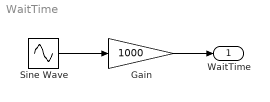
/*
 * File: WaitTime.c
 *
 * Code generated for Simulink model 'WaitTime'.
 *
 * Model version                  : 1.1
 * Simulink Coder version         : 9.3 (R2020a) 18-Nov-2019
 * C/C++ source code generated on : Tue Feb 15 23:33:07 2022
 *
 * Target selection: ert.tlc
 * Embedded hardware selection: ARM Compatible->ARM Cortex
 * Code generation objectives:
 *    1. Execution efficiency
 *    2. RAM efficiency
 * Validation result: Not run
 */

#include "WaitTime.h"

/* Block signals and states (default storage) */
DW rtDW;

/* External outputs (root outports fed by signals with default storage) */
ExtY rtY;

/* Real-time model */
RT_MODEL rtM_;
RT_MODEL *const rtM = &rtM_;

/* Model step function */
void WaitTime_step(void)
{
  real_T lastSin_tmp;

  /* Sin: '<Root>/Sine Wave' */
  if (rtDW.systemEnable != 0) {
    lastSin_tmp = 0.1 * ((rtM->Timing.clockTick0) * 1.0);
    rtDW.lastSin = sin(lastSin_tmp);
    rtDW.lastCos = cos(lastSin_tmp);
    rtDW.systemEnable = 0;
  }

  /* Outport: '<Root>/WaitTime' incorporates:
   *  Gain: '<Root>/Gain'
   *  Sin: '<Root>/Sine Wave'
   */
  rtY.WaitTime_g = (((rtDW.lastSin * 0.99500416527802571 + rtDW.lastCos *
                      -0.099833416646828155) * 0.99500416527802571 +
                     (rtDW.lastCos * 0.99500416527802571 - rtDW.lastSin *
                      -0.099833416646828155) * 0.099833416646828155) * 0.2 +
                    0.25) * 1000.0;

  /* Update for Sin: '<Root>/Sine Wave' */
  lastSin_tmp = rtDW.lastSin;
  rtDW.lastSin = rtDW.lastSin * 0.99500416527802571 + rtDW.lastCos *
    0.099833416646828155;
  rtDW.lastCos = rtDW.lastCos * 0.99500416527802571 - lastSin_tmp *
    0.099833416646828155;

  /* Update absolute time for base rate */
  /* The "clockTick0" counts the number of times the code of this task has
   * been executed. The resolution of this integer timer is 1.0, which is the step size
   * of the task. Size of "clockTick0" ensures timer will not overflow during the
   * application lifespan selected.
   */
  rtM->Timing.clockTick0++;
}
